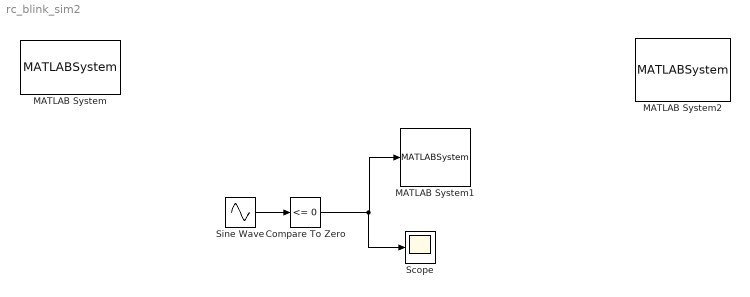
/*
 * Academic License - for use in teaching, academic research, and meeting
 * course requirements at degree granting institutions only.  Not for
 * government, commercial, or other organizational use.
 *
 * File: rc_blink_sim2.c
 *
 * Code generated for Simulink model 'rc_blink_sim2'.
 *
 * Model version                  : 1.3
 * Simulink Coder version         : 8.12 (R2017a) 16-Feb-2017
 * C/C++ source code generated on : Tue Jun 06 20:48:21 2017
 *
 * Target selection: ert.tlc
 * Embedded hardware selection: ARM Compatible->ARM Cortex
 * Code generation objectives: Unspecified
 * Validation result: Not run
 */

#include "rc_blink_sim2.h"
#include "rc_blink_sim2_private.h"
#include "rc_blink_sim2_dt.h"
#define rc_blink_sim2_rc_led_t         (1.0)

/* Block signals (auto storage) */
B_rc_blink_sim2_T rc_blink_sim2_B;

/* Block states (auto storage) */
DW_rc_blink_sim2_T rc_blink_sim2_DW;

/* Real-time model */
RT_MODEL_rc_blink_sim2_T rc_blink_sim2_M_;
RT_MODEL_rc_blink_sim2_T *const rc_blink_sim2_M = &rc_blink_sim2_M_;

/* Model step function */
void rc_blink_sim2_step(void)
{
  /* RelationalOperator: '<S1>/Compare' incorporates:
   *  Constant: '<S1>/Constant'
   *  Sin: '<Root>/Sine Wave'
   */
  rc_blink_sim2_B.Compare = (uint8_T)(sin(((real_T)rc_blink_sim2_DW.counter +
    rc_blink_sim2_P.SineWave_Offset) * 2.0 * 3.1415926535897931 /
    rc_blink_sim2_P.SineWave_NumSamp) * rc_blink_sim2_P.SineWave_Amp +
    rc_blink_sim2_P.SineWave_Bias <= rc_blink_sim2_P.Constant_Value);

  /* Start for MATLABSystem: '<Root>/MATLAB System1' incorporates:
   *  MATLABSystem: '<Root>/MATLAB System1'
   */
  rc_set_led(rc_blink_sim2_rc_led_t, rc_blink_sim2_B.Compare);

  /* Update for Sin: '<Root>/Sine Wave' */
  rc_blink_sim2_DW.counter++;
  if (rc_blink_sim2_DW.counter == rc_blink_sim2_P.SineWave_NumSamp) {
    rc_blink_sim2_DW.counter = 0;
  }

  /* End of Update for Sin: '<Root>/Sine Wave' */

  /* External mode */
  rtExtModeUploadCheckTrigger(1);

  {                                    /* Sample time: [0.1s, 0.0s] */
    rtExtModeUpload(0, rc_blink_sim2_M->Timing.taskTime0);
  }

  /* signal main to stop simulation */
  {                                    /* Sample time: [0.1s, 0.0s] */
    if ((rtmGetTFinal(rc_blink_sim2_M)!=-1) &&
        !((rtmGetTFinal(rc_blink_sim2_M)-rc_blink_sim2_M->Timing.taskTime0) >
          rc_blink_sim2_M->Timing.taskTime0 * (DBL_EPSILON))) {
      rtmSetErrorStatus(rc_blink_sim2_M, "Simulation finished");
    }

    if (rtmGetStopRequested(rc_blink_sim2_M)) {
      rtmSetErrorStatus(rc_blink_sim2_M, "Simulation finished");
    }
  }

  /* Update absolute time for base rate */
  /* The "clockTick0" counts the number of times the code of this task has
   * been executed. The absolute time is the multiplication of "clockTick0"
   * and "Timing.stepSize0". Size of "clockTick0" ensures timer will not
   * overflow during the application lifespan selected.
   */
  rc_blink_sim2_M->Timing.taskTime0 =
    (++rc_blink_sim2_M->Timing.clockTick0) * rc_blink_sim2_M->Timing.stepSize0;
}
